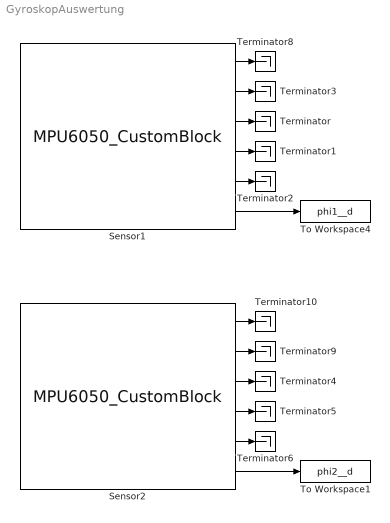
/*
 * Academic License - for use in teaching, academic research, and meeting
 * course requirements at degree granting institutions only.  Not for
 * government, commercial, or other organizational use.
 *
 * File: GyroskopAuswertung.c
 *
 * Code generated for Simulink model 'GyroskopAuswertung'.
 *
 * Model version                  : 1.84
 * Simulink Coder version         : 8.10 (R2016a) 10-Feb-2016
 * C/C++ source code generated on : Sat Aug 27 12:41:29 2016
 *
 * Target selection: ert.tlc
 * Embedded hardware selection: ARM Compatible->ARM Cortex
 * Code generation objectives: Unspecified
 * Validation result: Not run
 */

#include "GyroskopAuswertung.h"
#include "GyroskopAuswertung_private.h"
#include "GyroskopAuswertung_dt.h"

/* Block signals (auto storage) */
B_GyroskopAuswertung_T GyroskopAuswertung_B;

/* Block states (auto storage) */
DW_GyroskopAuswertung_T GyroskopAuswertung_DW;

/* Real-time model */
RT_MODEL_GyroskopAuswertung_T GyroskopAuswertung_M_;
RT_MODEL_GyroskopAuswertung_T *const GyroskopAuswertung_M =
  &GyroskopAuswertung_M_;

/* Model step function */
void GyroskopAuswertung_step(void)
{
  /* S-Function (MPU6050_CustomBlock): '<Root>/Sensor1' */
  MPU6050_CustomBlock_Outputs_wrapper( &GyroskopAuswertung_B.Sensor1_o1,
    &GyroskopAuswertung_B.Sensor1_o2, &GyroskopAuswertung_B.Sensor1_o3,
    &GyroskopAuswertung_B.Sensor1_o4, &GyroskopAuswertung_B.Sensor1_o5,
    &GyroskopAuswertung_B.Sensor1_o6, &GyroskopAuswertung_DW.Sensor1_DSTATE,
    &GyroskopAuswertung_P.Sensor1_P1, 1, &GyroskopAuswertung_P.Sensor1_P2, 1);

  /* S-Function (MPU6050_CustomBlock): '<Root>/Sensor2' */
  MPU6050_CustomBlock_Outputs_wrapper( &GyroskopAuswertung_B.Sensor2_o1,
    &GyroskopAuswertung_B.Sensor2_o2, &GyroskopAuswertung_B.Sensor2_o3,
    &GyroskopAuswertung_B.Sensor2_o4, &GyroskopAuswertung_B.Sensor2_o5,
    &GyroskopAuswertung_B.Sensor2_o6, &GyroskopAuswertung_DW.Sensor2_DSTATE,
    &GyroskopAuswertung_P.Sensor2_P1, 1, &GyroskopAuswertung_P.Sensor2_P2, 1);

  /* S-Function "MPU6050_CustomBlock_wrapper" Block: <Root>/Sensor1 */
  MPU6050_CustomBlock_Update_wrapper( &GyroskopAuswertung_B.Sensor1_o1,
    &GyroskopAuswertung_B.Sensor1_o2, &GyroskopAuswertung_B.Sensor1_o3,
    &GyroskopAuswertung_B.Sensor1_o4, &GyroskopAuswertung_B.Sensor1_o5,
    &GyroskopAuswertung_B.Sensor1_o6, &GyroskopAuswertung_DW.Sensor1_DSTATE,
    &GyroskopAuswertung_P.Sensor1_P1, 1, &GyroskopAuswertung_P.Sensor1_P2, 1);

  /* S-Function "MPU6050_CustomBlock_wrapper" Block: <Root>/Sensor2 */
  MPU6050_CustomBlock_Update_wrapper( &GyroskopAuswertung_B.Sensor2_o1,
    &GyroskopAuswertung_B.Sensor2_o2, &GyroskopAuswertung_B.Sensor2_o3,
    &GyroskopAuswertung_B.Sensor2_o4, &GyroskopAuswertung_B.Sensor2_o5,
    &GyroskopAuswertung_B.Sensor2_o6, &GyroskopAuswertung_DW.Sensor2_DSTATE,
    &GyroskopAuswertung_P.Sensor2_P1, 1, &GyroskopAuswertung_P.Sensor2_P2, 1);

  /* External mode */
  rtExtModeUploadCheckTrigger(1);

  {                                    /* Sample time: [0.01s, 0.0s] */
    rtExtModeUpload(0, GyroskopAuswertung_M->Timing.taskTime0);
  }

  /* signal main to stop simulation */
  {                                    /* Sample time: [0.01s, 0.0s] */
    if ((rtmGetTFinal(GyroskopAuswertung_M)!=-1) &&
        !((rtmGetTFinal(GyroskopAuswertung_M)-
           GyroskopAuswertung_M->Timing.taskTime0) >
          GyroskopAuswertung_M->Timing.taskTime0 * (DBL_EPSILON))) {
      rtmSetErrorStatus(GyroskopAuswertung_M, "Simulation finished");
    }

    if (rtmGetStopRequested(GyroskopAuswertung_M)) {
      rtmSetErrorStatus(GyroskopAuswertung_M, "Simulation finished");
    }
  }

  /* Update absolute time for base rate */
  /* The "clockTick0" counts the number of times the code of this task has
   * been executed. The absolute time is the multiplication of "clockTick0"
   * and "Timing.stepSize0". Size of "clockTick0" ensures timer will not
   * overflow during the application lifespan selected.
   * Timer of this task consists of two 32 bit unsigned integers.
   * The two integers represent the low bits Timing.clockTick0 and the high bits
   * Timing.clockTickH0. When the low bit overflows to 0, the high bits increment.
   */
  if (!(++GyroskopAuswertung_M->Timing.clockTick0)) {
    ++GyroskopAuswertung_M->Timing.clockTickH0;
  }

  GyroskopAuswertung_M->Timing.taskTime0 =
    GyroskopAuswertung_M->Timing.clockTick0 *
    GyroskopAuswertung_M->Timing.stepSize0 +
    GyroskopAuswertung_M->Timing.clockTickH0 *
    GyroskopAuswertung_M->Timing.stepSize0 * 4294967296.0;
}
